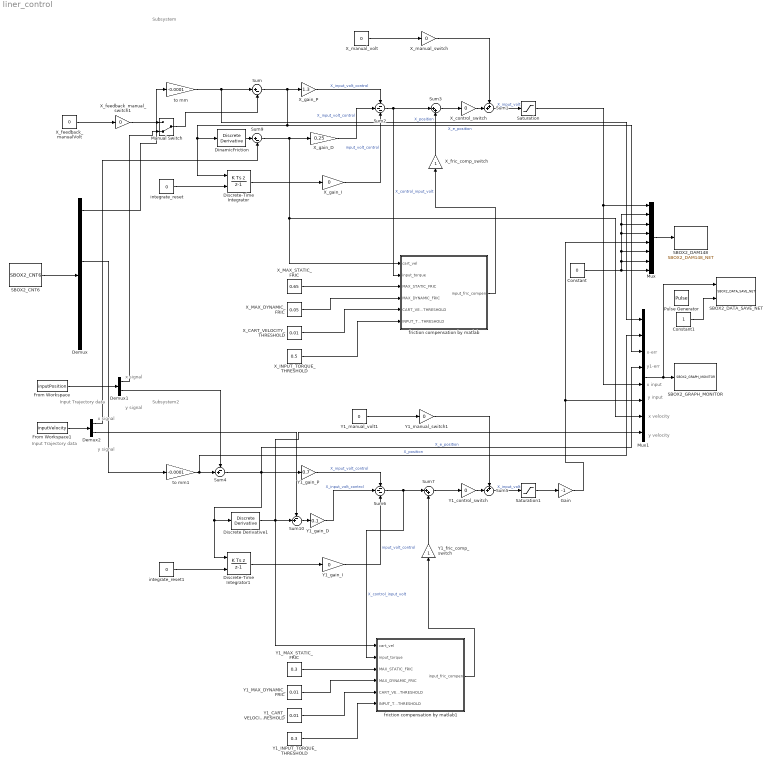
== matlab function liner_control/friction compensation by matlab ==
function input_fric_compen = fcn(cart_vel, input_torque, MAX_STATIC_FRIC, MAX_DYNAMIC_FRIC, CART_VELOCITY_THRESHOLD, INPUT_TORQUE_THRESHOLD)

input_fric_compen = zeros(1);

if abs(cart_vel) < CART_VELOCITY_THRESHOLD
    if input_torque > INPUT_TORQUE_THRESHOLD
        input_fric_compen = MAX_STATIC_FRIC * 0.9;
    else
        if input_torque < -INPUT_TORQUE_THRESHOLD
            input_fric_compen = - MAX_STATIC_FRIC * 0.9;
        else
            input_fric_compen = 0.0;
        end
    end
else
    if cart_vel > 0.0
        input_fric_compen = MAX_DYNAMIC_FRIC * 0.9;
    elseif cart_vel < 0.0
        input_fric_compen = - MAX_DYNAMIC_FRIC * 0.9;
    end
end

end

== matlab function liner_control/friction compensation by matlab1 ==
function input_fric_compen = fcn(cart_vel, input_torque, MAX_STATIC_FRIC, MAX_DYNAMIC_FRIC, CART_VELOCITY_THRESHOLD, INPUT_TORQUE_THRESHOLD)

input_fric_compen = zeros(1);

if abs(cart_vel) < CART_VELOCITY_THRESHOLD
    if input_torque > INPUT_TORQUE_THRESHOLD
        input_fric_compen = MAX_STATIC_FRIC * 0.9;
    else
        if input_torque < -INPUT_TORQUE_THRESHOLD
            input_fric_compen = - MAX_STATIC_FRIC * 0.9;
        else
            input_fric_compen = 0.0;
        end
    end
else
    if cart_vel > 0.0
        input_fric_compen = MAX_DYNAMIC_FRIC * 0.9;
    elseif cart_vel < 0.0
        input_fric_compen = - MAX_DYNAMIC_FRIC * 0.9;
    end
end

end

/*
 * liner_control.c
 *
 * Academic License - for use in teaching, academic research, and meeting
 * course requirements at degree granting institutions only.  Not for
 * government, commercial, or other organizational use.
 *
 * Code generation for model "liner_control".
 *
 * Model version              : 1.127
 * Simulink Coder version : 9.2 (R2019b) 18-Jul-2019
 * C source code generated on : Fri Jan 21 09:42:26 2022
 *
 * Target selection: sbox2.tlc
 * Note: GRT includes extra infrastructure and instrumentation for prototyping
 * Embedded hardware selection: 32-bit Generic
 * Code generation objectives: Unspecified
 * Validation result: Not run
 */

#include "liner_control_capi.h"
#include "liner_control.h"
#include "liner_control_private.h"

/* Block signals (default storage) */
B_liner_control_T liner_control_B;

/* Block states (default storage) */
DW_liner_control_T liner_control_DW;

/* Real-time model */
RT_MODEL_liner_control_T liner_control_M_;
RT_MODEL_liner_control_T *const liner_control_M = &liner_control_M_;
static void rate_scheduler(void);

/*
 *   This function updates active task flag for each subrate.
 * The function is called at model base rate, hence the
 * generated code self-manages all its subrates.
 */
static void rate_scheduler(void)
{
  /* Compute which subrates run during the next base time step.  Subrates
   * are an integer multiple of the base rate counter.  Therefore, the subtask
   * counter is reset when it reaches its limit (zero means run).
   */
  (liner_control_M->Timing.TaskCounters.TID[1])++;
  if ((liner_control_M->Timing.TaskCounters.TID[1]) > 99) {/* Sample time: [1.0s, 0.0s] */
    liner_control_M->Timing.TaskCounters.TID[1] = 0;
  }

  liner_control_M->Timing.sampleHits[1] =
    (liner_control_M->Timing.TaskCounters.TID[1] == 0);
}

/*
 * Output and update for atomic system:
 *    '<Root>/friction compensation by matlab'
 *    '<Root>/friction compensation by matlab1'
 */
void li_frictioncompensationbymatlab(real_T rtu_cart_vel, real_T
  rtu_input_torque, real_T rtu_MAX_STATIC_FRIC, real_T rtu_MAX_DYNAMIC_FRIC,
  real_T rtu_CART_VELOCITY_THRESHOLD, real_T rtu_INPUT_TORQUE_THRESHOLD,
  B_frictioncompensationbymatla_T *localB)
{
  /* MATLAB Function 'friction compensation by matlab': '<S7>:1' */
  /* '<S7>:1:3' */
  localB->input_fric_compen = 0.0;
  if (fabs(rtu_cart_vel) < rtu_CART_VELOCITY_THRESHOLD) {
    /* '<S7>:1:5' */
    if (rtu_input_torque > rtu_INPUT_TORQUE_THRESHOLD) {
      /* '<S7>:1:6' */
      /* '<S7>:1:7' */
      localB->input_fric_compen = rtu_MAX_STATIC_FRIC * 0.9;
    } else if (rtu_input_torque < -rtu_INPUT_TORQUE_THRESHOLD) {
      /* '<S7>:1:9' */
      /* '<S7>:1:10' */
      localB->input_fric_compen = -rtu_MAX_STATIC_FRIC * 0.9;
    } else {
      /* '<S7>:1:12' */
      localB->input_fric_compen = 0.0;
    }
  } else if (rtu_cart_vel > 0.0) {
    /* '<S7>:1:16' */
    /* '<S7>:1:17' */
    localB->input_fric_compen = rtu_MAX_DYNAMIC_FRIC * 0.9;
  } else {
    if (rtu_cart_vel < 0.0) {
      /* '<S7>:1:18' */
      /* '<S7>:1:19' */
      localB->input_fric_compen = -rtu_MAX_DYNAMIC_FRIC * 0.9;
    }
  }
}

/* Model step function */
void liner_control_step(void)
{
  real_T y;

  /* Gain: '<Root>/X_manual_switch' incorporates:
   *  Constant: '<Root>/X_manual_volt'
   */
  liner_control_B.X_manual_switch = liner_control_P.X_manual_switch_Gain *
    liner_control_P.X_manual_volt_Value;

  /* S-Function (udcm6_sep): '<S3>/icounter' */

  /* Level2 S-Function Block: '<S3>/icounter' (udcm6_sep) */
  {
    SimStruct *rts = liner_control_M->childSfunctions[0];
    sfcnOutputs(rts,0);
  }

  /* Gain: '<Root>/to mm' */
  liner_control_B.X_position = liner_control_P.tomm_Gain *
    liner_control_B.icounter[0];

  /* FromWorkspace: '<Root>/From Workspace' */
  {
    real_T *pDataValues = (real_T *)
      liner_control_DW.FromWorkspace_PWORK.DataPtr;
    real_T *pTimeValues = (real_T *)
      liner_control_DW.FromWorkspace_PWORK.TimePtr;
    int_T currTimeIndex = liner_control_DW.FromWorkspace_IWORK.PrevIndex;
    real_T t = liner_control_M->Timing.t[0];

    /* Get index */
    if (t <= pTimeValues[0]) {
      currTimeIndex = 0;
    } else if (t >= pTimeValues[300]) {
      currTimeIndex = 299;
    } else {
      if (t < pTimeValues[currTimeIndex]) {
        while (t < pTimeValues[currTimeIndex]) {
          currTimeIndex--;
        }
      } else {
        while (t >= pTimeValues[currTimeIndex + 1]) {
          currTimeIndex++;
        }
      }
    }

    liner_control_DW.FromWorkspace_IWORK.PrevIndex = currTimeIndex;

    /* Post output */
    {
      real_T t1 = pTimeValues[currTimeIndex];
      real_T t2 = pTimeValues[currTimeIndex + 1];
      if (t1 == t2) {
        if (t < t1) {
          {
            int_T elIdx;
            for (elIdx = 0; elIdx < 2; ++elIdx) {
              (&liner_control_B.FromWorkspace[0])[elIdx] =
                pDataValues[currTimeIndex];
              pDataValues += 301;
            }
          }
        } else {
          {
            int_T elIdx;
            for (elIdx = 0; elIdx < 2; ++elIdx) {
              (&liner_control_B.FromWorkspace[0])[elIdx] =
                pDataValues[currTimeIndex + 1];
              pDataValues += 301;
            }
          }
        }
      } else {
        real_T f1 = (t2 - t) / (t2 - t1);
        real_T f2 = 1.0 - f1;
        real_T d1;
        real_T d2;
        int_T TimeIndex= currTimeIndex;

        {
          int_T elIdx;
          for (elIdx = 0; elIdx < 2; ++elIdx) {
            d1 = pDataValues[TimeIndex];
            d2 = pDataValues[TimeIndex + 1];
            (&liner_control_B.FromWorkspace[0])[elIdx] = (real_T) rtInterpolate
              (d1, d2, f1, f2);
            pDataValues += 301;
          }
        }
      }
    }
  }

  /* ManualSwitch: '<Root>/Manual Switch' */
  if (liner_control_P.ManualSwitch_CurrentSetting == 1) {
    /* Gain: '<Root>/X_feedback_manual_switch1' incorporates:
     *  Constant: '<Root>/X_feedback_manualVolt'
     */
    liner_control_B.X_feedback_manual_switch1 =
      liner_control_P.X_feedback_manual_switch1_Gain *
      liner_control_P.X_feedback_manualVolt_Value;
    liner_control_B.ManualSwitch = liner_control_B.X_feedback_manual_switch1;
  } else {
    liner_control_B.ManualSwitch = liner_control_B.FromWorkspace[0];
  }

  /* End of ManualSwitch: '<Root>/Manual Switch' */

  /* Sum: '<Root>/Sum' */
  liner_control_B.X_e_position = liner_control_B.X_position -
    liner_control_B.ManualSwitch;

  /* Gain: '<Root>/X_gain_P' */
  liner_control_B.X_input_volt_control = liner_control_P.X_gain_P_Gain *
    liner_control_B.X_e_position;

  /* SampleTimeMath: '<S1>/TSamp'
   *
   * About '<S1>/TSamp':
   *  y = u * K where K = 1 / ( w * Ts )
   */
  liner_control_B.TSamp = liner_control_B.X_e_position *
    liner_control_P.TSamp_WtEt;

  /* UnitDelay: '<S1>/UD' */
  liner_control_B.Uk1 = liner_control_DW.UD_DSTATE;

  /* Sum: '<S1>/Diff' */
  liner_control_B.Diff = liner_control_B.TSamp - liner_control_B.Uk1;

  /* FromWorkspace: '<Root>/From Workspace1' */
  {
    real_T *pDataValues = (real_T *)
      liner_control_DW.FromWorkspace1_PWORK.DataPtr;
    real_T *pTimeValues = (real_T *)
      liner_control_DW.FromWorkspace1_PWORK.TimePtr;
    int_T currTimeIndex = liner_control_DW.FromWorkspace1_IWORK.PrevIndex;
    real_T t = liner_control_M->Timing.t[0];

    /* Get index */
    if (t <= pTimeValues[0]) {
      currTimeIndex = 0;
    } else if (t >= pTimeValues[300]) {
      currTimeIndex = 299;
    } else {
      if (t < pTimeValues[currTimeIndex]) {
        while (t < pTimeValues[currTimeIndex]) {
          currTimeIndex--;
        }
      } else {
        while (t >= pTimeValues[currTimeIndex + 1]) {
          currTimeIndex++;
        }
      }
    }

    liner_control_DW.FromWorkspace1_IWORK.PrevIndex = currTimeIndex;

    /* Post output */
    {
      real_T t1 = pTimeValues[currTimeIndex];
      real_T t2 = pTimeValues[currTimeIndex + 1];
      if (t1 == t2) {
        if (t < t1) {
          {
            int_T elIdx;
            for (elIdx = 0; elIdx < 2; ++elIdx) {
              (&liner_control_B.FromWorkspace1[0])[elIdx] =
                pDataValues[currTimeIndex];
              pDataValues += 301;
            }
          }
        } else {
          {
            int_T elIdx;
            for (elIdx = 0; elIdx < 2; ++elIdx) {
              (&liner_control_B.FromWorkspace1[0])[elIdx] =
                pDataValues[currTimeIndex + 1];
              pDataValues += 301;
            }
          }
        }
      } else {
        real_T f1 = (t2 - t) / (t2 - t1);
        real_T f2 = 1.0 - f1;
        real_T d1;
        real_T d2;
        int_T TimeIndex= currTimeIndex;

        {
          int_T elIdx;
          for (elIdx = 0; elIdx < 2; ++elIdx) {
            d1 = pDataValues[TimeIndex];
            d2 = pDataValues[TimeIndex + 1];
            (&liner_control_B.FromWorkspace1[0])[elIdx] = (real_T) rtInterpolate
              (d1, d2, f1, f2);
            pDataValues += 301;
          }
        }
      }
    }
  }

  /* Sum: '<Root>/Sum9' */
  liner_control_B.Sum9 = liner_control_B.Diff - liner_control_B.FromWorkspace1[0];

  /* Gain: '<Root>/X_gain_D' */
  liner_control_B.X_input_volt_control_a = liner_control_P.X_gain_D_Gain *
    liner_control_B.Sum9;

  /* DiscreteIntegrator: '<Root>/Discrete-Time Integrator' incorporates:
   *  Constant: '<Root>/integrate_reset'
   */
  if ((liner_control_P.integrate_reset_Value > 0.0) &&
      (liner_control_DW.DiscreteTimeIntegrator_PrevRese <= 0)) {
    liner_control_DW.DiscreteTimeIntegrator_DSTATE =
      liner_control_P.DiscreteTimeIntegrator_IC;
  }

  liner_control_B.DiscreteTimeIntegrator =
    liner_control_P.DiscreteTimeIntegrator_gainval *
    liner_control_B.X_e_position +
    liner_control_DW.DiscreteTimeIntegrator_DSTATE;

  /* End of DiscreteIntegrator: '<Root>/Discrete-Time Integrator' */

  /* Gain: '<Root>/X_gain_I' */
  liner_control_B.input_volt_control = liner_control_P.X_gain_I_Gain *
    liner_control_B.DiscreteTimeIntegrator;

  /* Sum: '<Root>/Sum2' */
  liner_control_B.X_control_input_volt = ((0.0 -
    liner_control_B.X_input_volt_control) -
    liner_control_B.X_input_volt_control_a) - liner_control_B.input_volt_control;

  /* MATLAB Function: '<Root>/friction compensation by matlab' incorporates:
   *  Constant: '<Root>/X_CART_VELOCITY_THRESHOLD'
   *  Constant: '<Root>/X_INPUT_TORQUE_THRESHOLD'
   *  Constant: '<Root>/X_MAX_DYNAMIC_FRIC'
   *  Constant: '<Root>/X_MAX_STATIC_FRIC'
   */
  li_frictioncompensationbymatlab(liner_control_B.Sum9,
    liner_control_B.X_control_input_volt,
    liner_control_P.X_MAX_STATIC_FRIC_Value,
    liner_control_P.X_MAX_DYNAMIC_FRIC_Value,
    liner_control_P.X_CART_VELOCITY_THRESHOLD_Value,
    liner_control_P.X_INPUT_TORQUE_THRESHOLD_Value,
    &liner_control_B.sf_frictioncompensationbymatlab);

  /* Gain: '<Root>/X_fric_comp_switch' */
  liner_control_B.X_fric_comp_switch = liner_control_P.X_fric_comp_switch_Gain *
    liner_control_B.sf_frictioncompensationbymatlab.input_fric_compen;

  /* Sum: '<Root>/Sum3' */
  liner_control_B.Sum3 = liner_control_B.X_control_input_volt +
    liner_control_B.X_fric_comp_switch;

  /* Gain: '<Root>/X_control_switch' */
  liner_control_B.X_control_switch = liner_control_P.X_control_switch_Gain *
    liner_control_B.Sum3;

  /* Sum: '<Root>/Sum1' */
  liner_control_B.X_input_volt = liner_control_B.X_manual_switch +
    liner_control_B.X_control_switch;

  /* Saturate: '<Root>/Saturation' */
  if (liner_control_B.X_input_volt > liner_control_P.Saturation_UpperSat) {
    liner_control_B.Saturation = liner_control_P.Saturation_UpperSat;
  } else if (liner_control_B.X_input_volt < liner_control_P.Saturation_LowerSat)
  {
    liner_control_B.Saturation = liner_control_P.Saturation_LowerSat;
  } else {
    liner_control_B.Saturation = liner_control_B.X_input_volt;
  }

  /* End of Saturate: '<Root>/Saturation' */

  /* Gain: '<Root>/Y1_manual_switch1' incorporates:
   *  Constant: '<Root>/Y1_manual_volt1'
   */
  liner_control_B.Y1_manual_switch1 = liner_control_P.Y1_manual_switch1_Gain *
    liner_control_P.Y1_manual_volt1_Value;

  /* Gain: '<Root>/to mm1' */
  liner_control_B.X_position_o = liner_control_P.tomm1_Gain *
    liner_control_B.icounter[2];

  /* Sum: '<Root>/Sum4' */
  liner_control_B.X_e_position_f = liner_control_B.X_position_o -
    liner_control_B.FromWorkspace[1];

  /* Gain: '<Root>/Y1_gain_P' */
  liner_control_B.X_input_volt_control_o = liner_control_P.Y1_gain_P_Gain *
    liner_control_B.X_e_position_f;

  /* SampleTimeMath: '<S2>/TSamp'
   *
   * About '<S2>/TSamp':
   *  y = u * K where K = 1 / ( w * Ts )
   */
  liner_control_B.TSamp_g = liner_control_B.X_e_position_f *
    liner_control_P.TSamp_WtEt_f;

  /* UnitDelay: '<S2>/UD' */
  liner_control_B.Uk1_a = liner_control_DW.UD_DSTATE_l;

  /* Sum: '<S2>/Diff' */
  liner_control_B.Diff_p = liner_control_B.TSamp_g - liner_control_B.Uk1_a;

  /* Sum: '<Root>/Sum10' */
  liner_control_B.Sum10 = liner_control_B.Diff_p -
    liner_control_B.FromWorkspace1[1];

  /* Gain: '<Root>/Y1_gain_D' */
  liner_control_B.X_input_volt_control_n = liner_control_P.Y1_gain_D_Gain *
    liner_control_B.Sum10;

  /* DiscreteIntegrator: '<Root>/Discrete-Time Integrator1' incorporates:
   *  Constant: '<Root>/integrate_reset1'
   */
  if ((liner_control_P.integrate_reset1_Value > 0.0) &&
      (liner_control_DW.DiscreteTimeIntegrator1_PrevRes <= 0)) {
    liner_control_DW.DiscreteTimeIntegrator1_DSTATE =
      liner_control_P.DiscreteTimeIntegrator1_IC;
  }

  liner_control_B.DiscreteTimeIntegrator1 =
    liner_control_P.DiscreteTimeIntegrator1_gainval *
    liner_control_B.X_e_position_f +
    liner_control_DW.DiscreteTimeIntegrator1_DSTATE;

  /* End of DiscreteIntegrator: '<Root>/Discrete-Time Integrator1' */

  /* Gain: '<Root>/Y1_gain_I' */
  liner_control_B.input_volt_control_k = liner_control_P.Y1_gain_I_Gain *
    liner_control_B.DiscreteTimeIntegrator1;

  /* Sum: '<Root>/Sum6' */
  liner_control_B.X_control_input_volt_n = ((0.0 -
    liner_control_B.X_input_volt_control_o) -
    liner_control_B.X_input_volt_control_n) -
    liner_control_B.input_volt_control_k;

  /* MATLAB Function: '<Root>/friction compensation by matlab1' incorporates:
   *  Constant: '<Root>/Y1_CART_VELOCITY_THRESHOLD'
   *  Constant: '<Root>/Y1_INPUT_TORQUE_THRESHOLD'
   *  Constant: '<Root>/Y1_MAX_DYNAMIC_FRIC'
   *  Constant: '<Root>/Y1_MAX_STATIC_FRIC'
   */
  li_frictioncompensationbymatlab(liner_control_B.Diff_p,
    liner_control_B.X_control_input_volt_n,
    liner_control_P.Y1_MAX_STATIC_FRIC_Value,
    liner_control_P.Y1_MAX_DYNAMIC_FRIC_Value,
    liner_control_P.Y1_CART_VELOCITY_THRESHOLD_Valu,
    liner_control_P.Y1_INPUT_TORQUE_THRESHOLD_Value,
    &liner_control_B.sf_frictioncompensationbymatl_o);

  /* Gain: '<Root>/Y1_fric_comp_switch' */
  liner_control_B.Y1_fric_comp_switch = liner_control_P.Y1_fric_comp_switch_Gain
    * liner_control_B.sf_frictioncompensationbymatl_o.input_fric_compen;

  /* Sum: '<Root>/Sum7' */
  liner_control_B.Sum7 = liner_control_B.X_control_input_volt_n +
    liner_control_B.Y1_fric_comp_switch;

  /* Gain: '<Root>/Y1_control_switch' */
  liner_control_B.Y1_control_switch = liner_control_P.Y1_control_switch_Gain *
    liner_control_B.Sum7;

  /* Sum: '<Root>/Sum5' */
  liner_control_B.X_input_volt_e = liner_control_B.Y1_manual_switch1 +
    liner_control_B.Y1_control_switch;

  /* Saturate: '<Root>/Saturation1' */
  if (liner_control_B.X_input_volt_e > liner_control_P.Saturation1_UpperSat) {
    liner_control_B.Saturation1 = liner_control_P.Saturation1_UpperSat;
  } else if (liner_control_B.X_input_volt_e <
             liner_control_P.Saturation1_LowerSat) {
    liner_control_B.Saturation1 = liner_control_P.Saturation1_LowerSat;
  } else {
    liner_control_B.Saturation1 = liner_control_B.X_input_volt_e;
  }

  /* End of Saturate: '<Root>/Saturation1' */

  /* Gain: '<Root>/Gain' */
  liner_control_B.Gain = liner_control_P.Gain_Gain * liner_control_B.Saturation1;

  /* Saturate: '<S4>/DAC' incorporates:
   *  Constant: '<Root>/Constant'
   */
  if (liner_control_B.Saturation > liner_control_P.DAC_UpperSat) {
    y = liner_control_P.DAC_UpperSat;
  } else if (liner_control_B.Saturation < liner_control_P.DAC_LowerSat) {
    y = liner_control_P.DAC_LowerSat;
  } else {
    y = liner_control_B.Saturation;
  }

  liner_control_B.DAC[0] = y;
  if (liner_control_P.Constant_Value > liner_control_P.DAC_UpperSat) {
    y = liner_control_P.DAC_UpperSat;
  } else if (liner_control_P.Constant_Value < liner_control_P.DAC_LowerSat) {
    y = liner_control_P.DAC_LowerSat;
  } else {
    y = liner_control_P.Constant_Value;
  }

  liner_control_B.DAC[1] = y;
  if (liner_control_P.Constant_Value > liner_control_P.DAC_UpperSat) {
    y = liner_control_P.DAC_UpperSat;
  } else if (liner_control_P.Constant_Value < liner_control_P.DAC_LowerSat) {
    y = liner_control_P.DAC_LowerSat;
  } else {
    y = liner_control_P.Constant_Value;
  }

  liner_control_B.DAC[2] = y;
  if (liner_control_P.Constant_Value > liner_control_P.DAC_UpperSat) {
    y = liner_control_P.DAC_UpperSat;
  } else if (liner_control_P.Constant_Value < liner_control_P.DAC_LowerSat) {
    y = liner_control_P.DAC_LowerSat;
  } else {
    y = liner_control_P.Constant_Value;
  }

  liner_control_B.DAC[3] = y;
  if (liner_control_B.Gain > liner_control_P.DAC_UpperSat) {
    y = liner_control_P.DAC_UpperSat;
  } else if (liner_control_B.Gain < liner_control_P.DAC_LowerSat) {
    y = liner_control_P.DAC_LowerSat;
  } else {
    y = liner_control_B.Gain;
  }

  liner_control_B.DAC[4] = y;
  if (liner_control_P.Constant_Value > liner_control_P.DAC_UpperSat) {
    y = liner_control_P.DAC_UpperSat;
  } else if (liner_control_P.Constant_Value < liner_control_P.DAC_LowerSat) {
    y = liner_control_P.DAC_LowerSat;
  } else {
    y = liner_control_P.Constant_Value;
  }

  liner_control_B.DAC[5] = y;
  if (liner_control_P.Constant_Value > liner_control_P.DAC_UpperSat) {
    y = liner_control_P.DAC_UpperSat;
  } else if (liner_control_P.Constant_Value < liner_control_P.DAC_LowerSat) {
    y = liner_control_P.DAC_LowerSat;
  } else {
    y = liner_control_P.Constant_Value;
  }

  liner_control_B.DAC[6] = y;
  if (liner_control_P.Constant_Value > liner_control_P.DAC_UpperSat) {
    y = liner_control_P.DAC_UpperSat;
  } else if (liner_control_P.Constant_Value < liner_control_P.DAC_LowerSat) {
    y = liner_control_P.DAC_LowerSat;
  } else {
    y = liner_control_P.Constant_Value;
  }

  liner_control_B.DAC[7] = y;

  /* End of Saturate: '<S4>/DAC' */

  /* S-Function (dam148ctrl): '<S4>/dac' */

  /* Level2 S-Function Block: '<S4>/dac' (dam148ctrl) */
  {
    SimStruct *rts = liner_control_M->childSfunctions[1];
    sfcnOutputs(rts,0);
  }

  /* Gain: '<S5>/data_ch' */
  liner_control_B.data_ch[0] = liner_control_P.data_ch_Gain *
    liner_control_B.X_position;
  liner_control_B.data_ch[1] = liner_control_P.data_ch_Gain *
    liner_control_B.X_position_o;
  liner_control_B.data_ch[2] = liner_control_P.data_ch_Gain *
    liner_control_B.X_e_position;
  liner_control_B.data_ch[3] = liner_control_P.data_ch_Gain *
    liner_control_B.X_e_position_f;
  liner_control_B.data_ch[4] = liner_control_P.data_ch_Gain *
    liner_control_B.Saturation;
  liner_control_B.data_ch[5] = liner_control_P.data_ch_Gain *
    liner_control_B.Gain;
  liner_control_B.data_ch[6] = liner_control_P.data_ch_Gain *
    liner_control_B.Sum9;
  liner_control_B.data_ch[7] = liner_control_P.data_ch_Gain *
    liner_control_B.Diff_p;

  /* Constant: '<Root>/Constant1' */
  liner_control_B.Constant1 = liner_control_P.Constant1_Value;

  /* S-Function (to_memory_rt): '<S5>/to_memory_rt' */

  /* Level2 S-Function Block: '<S5>/to_memory_rt' (to_memory_rt) */
  {
    SimStruct *rts = liner_control_M->childSfunctions[2];
    sfcnOutputs(rts,0);
  }

  /* Gain: '<S6>/input_ch' */
  liner_control_B.input_ch[0] = liner_control_P.input_ch_Gain *
    liner_control_B.X_position;
  liner_control_B.input_ch[1] = liner_control_P.input_ch_Gain *
    liner_control_B.X_position_o;
  liner_control_B.input_ch[2] = liner_control_P.input_ch_Gain *
    liner_control_B.X_e_position;
  liner_control_B.input_ch[3] = liner_control_P.input_ch_Gain *
    liner_control_B.X_e_position_f;
  liner_control_B.input_ch[4] = liner_control_P.input_ch_Gain *
    liner_control_B.Saturation;
  liner_control_B.input_ch[5] = liner_control_P.input_ch_Gain *
    liner_control_B.Gain;
  liner_control_B.input_ch[6] = liner_control_P.input_ch_Gain *
    liner_control_B.Sum9;
  liner_control_B.input_ch[7] = liner_control_P.input_ch_Gain *
    liner_control_B.Diff_p;

  /* S-Function (to_host_rt): '<S6>/to_host_rt' */

  /* Level2 S-Function Block: '<S6>/to_host_rt' (to_host_rt) */
  {
    SimStruct *rts = liner_control_M->childSfunctions[3];
    sfcnOutputs(rts,0);
  }

  if (liner_control_M->Timing.TaskCounters.TID[1] == 0) {
    /* DiscretePulseGenerator: '<Root>/Pulse Generator' */
    liner_control_B.PulseGenerator = (liner_control_DW.clockTickCounter <
      liner_control_P.PulseGenerator_Duty) && (liner_control_DW.clockTickCounter
      >= 0) ? liner_control_P.PulseGenerator_Amp : 0.0;
    if (liner_control_DW.clockTickCounter >=
        liner_control_P.PulseGenerator_Period - 1.0) {
      liner_control_DW.clockTickCounter = 0;
    } else {
      liner_control_DW.clockTickCounter++;
    }

    /* End of DiscretePulseGenerator: '<Root>/Pulse Generator' */
  }

  /* Update for UnitDelay: '<S1>/UD' */
  liner_control_DW.UD_DSTATE = liner_control_B.TSamp;

  /* Update for DiscreteIntegrator: '<Root>/Discrete-Time Integrator' incorporates:
   *  Constant: '<Root>/integrate_reset'
   */
  liner_control_DW.DiscreteTimeIntegrator_DSTATE =
    liner_control_B.DiscreteTimeIntegrator;
  if (liner_control_P.integrate_reset_Value > 0.0) {
    liner_control_DW.DiscreteTimeIntegrator_PrevRese = 1;
  } else if (liner_control_P.integrate_reset_Value < 0.0) {
    liner_control_DW.DiscreteTimeIntegrator_PrevRese = -1;
  } else if (liner_control_P.integrate_reset_Value == 0.0) {
    liner_control_DW.DiscreteTimeIntegrator_PrevRese = 0;
  } else {
    liner_control_DW.DiscreteTimeIntegrator_PrevRese = 2;
  }

  /* End of Update for DiscreteIntegrator: '<Root>/Discrete-Time Integrator' */

  /* Update for UnitDelay: '<S2>/UD' */
  liner_control_DW.UD_DSTATE_l = liner_control_B.TSamp_g;

  /* Update for DiscreteIntegrator: '<Root>/Discrete-Time Integrator1' incorporates:
   *  Constant: '<Root>/integrate_reset1'
   */
  liner_control_DW.DiscreteTimeIntegrator1_DSTATE =
    liner_control_B.DiscreteTimeIntegrator1;
  if (liner_control_P.integrate_reset1_Value > 0.0) {
    liner_control_DW.DiscreteTimeIntegrator1_PrevRes = 1;
  } else if (liner_control_P.integrate_reset1_Value < 0.0) {
    liner_control_DW.DiscreteTimeIntegrator1_PrevRes = -1;
  } else if (liner_control_P.integrate_reset1_Value == 0.0) {
    liner_control_DW.DiscreteTimeIntegrator1_PrevRes = 0;
  } else {
    liner_control_DW.DiscreteTimeIntegrator1_PrevRes = 2;
  }

  /* End of Update for DiscreteIntegrator: '<Root>/Discrete-Time Integrator1' */

  /* Update absolute time for base rate */
  /* The "clockTick0" counts the number of times the code of this task has
   * been executed. The absolute time is the multiplication of "clockTick0"
   * and "Timing.stepSize0". Size of "clockTick0" ensures timer will not
   * overflow during the application lifespan selected.
   * Timer of this task consists of two 32 bit unsigned integers.
   * The two integers represent the low bits Timing.clockTick0 and the high bits
   * Timing.clockTickH0. When the low bit overflows to 0, the high bits increment.
   */
  if (!(++liner_control_M->Timing.clockTick0)) {
    ++liner_control_M->Timing.clockTickH0;
  }

  liner_control_M->Timing.t[0] = liner_control_M->Timing.clockTick0 *
    liner_control_M->Timing.stepSize0 + liner_control_M->Timing.clockTickH0 *
    liner_control_M->Timing.stepSize0 * 4294967296.0;
  rate_scheduler();
}
